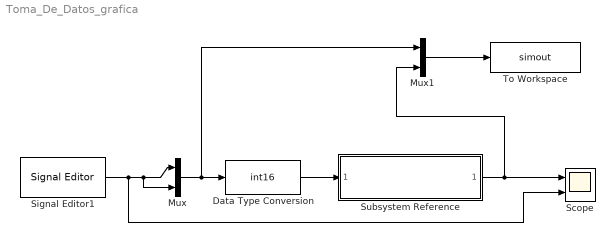
/*
 * Academic License - for use in teaching, academic research, and meeting
 * course requirements at degree granting institutions only.  Not for
 * government, commercial, or other organizational use.
 *
 * File: Toma_De_Datos_grafica.c
 *
 * Code generated for Simulink model 'Toma_De_Datos_grafica'.
 *
 * Model version                  : 1.8
 * Simulink Coder version         : 23.2 (R2023b) 01-Aug-2023
 * C/C++ source code generated on : Thu Nov 30 12:35:22 2023
 *
 * Target selection: ert.tlc
 * Embedded hardware selection: Atmel->AVR
 * Code generation objectives: Unspecified
 * Validation result: Not run
 */

#include "Toma_De_Datos_grafica.h"
#include <math.h>
#include "rt_nonfinite.h"
#include "rtwtypes.h"
#include "Toma_De_Datos_grafica_private.h"

/* Block signals (default storage) */
B_Toma_De_Datos_grafica_T Toma_De_Datos_grafica_B;

/* Block states (default storage) */
DW_Toma_De_Datos_grafica_T Toma_De_Datos_grafica_DW;

/* Real-time model */
static RT_MODEL_Toma_De_Datos_grafic_T Toma_De_Datos_grafica_M_;
RT_MODEL_Toma_De_Datos_grafic_T *const Toma_De_Datos_grafica_M =
  &Toma_De_Datos_grafica_M_;

/* Model step function */
void Toma_De_Datos_grafica_step(void)
{
  {
    real_T (*lastU)[2];
    real_T Gain_tmp;
    real_T lastTime_tmp;
    int32_T rtb_Gain;
    int32_T rtb_Saturation4;
    int16_T rtb_DataTypeConversion_idx_1;
    int16_T y;

    /* MATLABSystem: '<S3>/Encoder' */
    if (Toma_De_Datos_grafica_DW.obj_n.SampleTime !=
        Toma_De_Datos_grafica_P.Encoder_SampleTime) {
      Toma_De_Datos_grafica_DW.obj_n.SampleTime =
        Toma_De_Datos_grafica_P.Encoder_SampleTime;
    }

    if (Toma_De_Datos_grafica_DW.obj_n.TunablePropsChanged) {
      Toma_De_Datos_grafica_DW.obj_n.TunablePropsChanged = false;
    }

    /* MATLABSystem: '<S3>/Encoder' */
    MW_EncoderRead(Toma_De_Datos_grafica_DW.obj_n.Index,
                   &Toma_De_Datos_grafica_B.Encoder);

    /* MATLABSystem: '<S3>/Encoder1' */
    if (Toma_De_Datos_grafica_DW.obj.SampleTime !=
        Toma_De_Datos_grafica_P.Encoder1_SampleTime) {
      Toma_De_Datos_grafica_DW.obj.SampleTime =
        Toma_De_Datos_grafica_P.Encoder1_SampleTime;
    }

    if (Toma_De_Datos_grafica_DW.obj.TunablePropsChanged) {
      Toma_De_Datos_grafica_DW.obj.TunablePropsChanged = false;
    }

    /* MATLABSystem: '<S3>/Encoder1' */
    MW_EncoderRead(Toma_De_Datos_grafica_DW.obj.Index,
                   &Toma_De_Datos_grafica_B.Encoder1);

    /* Gain: '<S3>/Gain' */
    Gain_tmp = (real_T)Toma_De_Datos_grafica_P.Gain_Gain *
      1.1368683772161603E-13;

    /* Gain: '<S3>/Gain' incorporates:
     *  SignalConversion generated from: '<S3>/Gain'
     */
    Toma_De_Datos_grafica_B.Gain[0] = Gain_tmp * (real_T)
      Toma_De_Datos_grafica_B.Encoder;
    Toma_De_Datos_grafica_B.Gain[1] = Gain_tmp * (real_T)
      Toma_De_Datos_grafica_B.Encoder1;

    /* Derivative: '<S3>/Derivative' */
    Gain_tmp = Toma_De_Datos_grafica_M->Timing.t[0];
    if ((Toma_De_Datos_grafica_DW.TimeStampA >= Gain_tmp) &&
        (Toma_De_Datos_grafica_DW.TimeStampB >= Gain_tmp)) {
      /* Derivative: '<S3>/Derivative' */
      Toma_De_Datos_grafica_B.Derivative[0] = 0.0;
      Toma_De_Datos_grafica_B.Derivative[1] = 0.0;
    } else {
      lastTime_tmp = Toma_De_Datos_grafica_DW.TimeStampA;
      lastU = &Toma_De_Datos_grafica_DW.LastUAtTimeA;
      if (Toma_De_Datos_grafica_DW.TimeStampA <
          Toma_De_Datos_grafica_DW.TimeStampB) {
        if (Toma_De_Datos_grafica_DW.TimeStampB < Gain_tmp) {
          lastTime_tmp = Toma_De_Datos_grafica_DW.TimeStampB;
          lastU = &Toma_De_Datos_grafica_DW.LastUAtTimeB;
        }
      } else if (Toma_De_Datos_grafica_DW.TimeStampA >= Gain_tmp) {
        lastTime_tmp = Toma_De_Datos_grafica_DW.TimeStampB;
        lastU = &Toma_De_Datos_grafica_DW.LastUAtTimeB;
      }

      Gain_tmp -= lastTime_tmp;

      /* Derivative: '<S3>/Derivative' */
      Toma_De_Datos_grafica_B.Derivative[0] = (Toma_De_Datos_grafica_B.Gain[0] -
        (*lastU)[0]) / Gain_tmp;
      Toma_De_Datos_grafica_B.Derivative[1] = (Toma_De_Datos_grafica_B.Gain[1] -
        (*lastU)[1]) / Gain_tmp;
    }

    /* End of Derivative: '<S3>/Derivative' */

    /* FromWorkspace: '<S1>/From Workspace' */
    {
      real_T *pDataValues = (real_T *)
        Toma_De_Datos_grafica_DW.FromWorkspace_PWORK.DataPtr;
      real_T *pTimeValues = (real_T *)
        Toma_De_Datos_grafica_DW.FromWorkspace_PWORK.TimePtr;
      int_T currTimeIndex =
        Toma_De_Datos_grafica_DW.FromWorkspace_IWORK.PrevIndex;
      real_T t = Toma_De_Datos_grafica_M->Timing.t[0];
      if (t > pTimeValues[13]) {
        Toma_De_Datos_grafica_B.Signal2 = 0.0;
      } else {
        /* Get index */
        if (t <= pTimeValues[0]) {
          currTimeIndex = 0;
        } else if (t >= pTimeValues[13]) {
          currTimeIndex = 12;
        } else {
          if (t < pTimeValues[currTimeIndex]) {
            while (t < pTimeValues[currTimeIndex]) {
              currTimeIndex--;
            }
          } else {
            while (t >= pTimeValues[currTimeIndex + 1]) {
              currTimeIndex++;
            }
          }
        }

        Toma_De_Datos_grafica_DW.FromWorkspace_IWORK.PrevIndex = currTimeIndex;

        /* Post output */
        {
          real_T t1 = pTimeValues[currTimeIndex];
          real_T t2 = pTimeValues[currTimeIndex + 1];
          if (t1 == t2) {
            if (t < t1) {
              Toma_De_Datos_grafica_B.Signal2 = pDataValues[currTimeIndex];
            } else {
              Toma_De_Datos_grafica_B.Signal2 = pDataValues[currTimeIndex + 1];
            }
          } else {
            real_T f1 = (t2 - t) / (t2 - t1);
            real_T f2 = 1.0 - f1;
            real_T d1;
            real_T d2;
            int_T TimeIndex = currTimeIndex;
            d1 = pDataValues[TimeIndex];
            d2 = pDataValues[TimeIndex + 1];
            Toma_De_Datos_grafica_B.Signal2 = (real_T) rtInterpolate(d1, d2, f1,
              f2);
            pDataValues += 14;
          }
        }
      }
    }

    /* SignalConversion generated from: '<Root>/To Workspace' */
    Toma_De_Datos_grafica_B.TmpSignalConversionAt_asyncqueu[0] =
      Toma_De_Datos_grafica_B.Signal2;
    Toma_De_Datos_grafica_B.TmpSignalConversionAt_asyncqueu[1] =
      Toma_De_Datos_grafica_B.Signal2;
    Toma_De_Datos_grafica_B.TmpSignalConversionAt_asyncqueu[2] =
      Toma_De_Datos_grafica_B.Derivative[0];
    Toma_De_Datos_grafica_B.TmpSignalConversionAt_asyncqueu[3] =
      Toma_De_Datos_grafica_B.Derivative[1];

    /* DataTypeConversion: '<Root>/Data Type Conversion' */
    Gain_tmp = floor(Toma_De_Datos_grafica_B.Signal2);
    if (rtIsNaN(Gain_tmp) || rtIsInf(Gain_tmp)) {
      lastTime_tmp = 0.0;
      Gain_tmp = 0.0;
    } else {
      lastTime_tmp = fmod(Gain_tmp, 65536.0);
      Gain_tmp = lastTime_tmp;
    }

    rtb_DataTypeConversion_idx_1 = Gain_tmp < 0.0 ? -(int16_T)(uint16_T)
      -Gain_tmp : (int16_T)(uint16_T)Gain_tmp;

    /* SignalConversion generated from: '<S3>/Mux' */
    Toma_De_Datos_grafica_B.TmpSignalConversionAtTAQSigLogg[0] =
      Toma_De_Datos_grafica_B.Encoder;
    Toma_De_Datos_grafica_B.TmpSignalConversionAtTAQSigLogg[1] =
      Toma_De_Datos_grafica_B.Encoder1;

    /* MATLABSystem: '<S4>/Adelante_der' */
    Toma_De_Datos_grafica_DW.obj_d.PWMDriverObj.MW_PWM_HANDLE = MW_PWM_GetHandle
      (12UL);

    /* Saturate: '<S4>/Saturation2' */
    if (rtb_DataTypeConversion_idx_1 >
        Toma_De_Datos_grafica_P.Saturation2_UpperSat) {
      y = Toma_De_Datos_grafica_P.Saturation2_UpperSat;
    } else if (rtb_DataTypeConversion_idx_1 <
               Toma_De_Datos_grafica_P.Saturation2_LowerSat) {
      y = Toma_De_Datos_grafica_P.Saturation2_LowerSat;
    } else {
      y = rtb_DataTypeConversion_idx_1;
    }

    /* End of Saturate: '<S4>/Saturation2' */

    /* Start for MATLABSystem: '<S4>/Adelante_der' */
    if (y > 255) {
      y = 255;
    }

    if (y < 0) {
      y = 0;
    }

    /* MATLABSystem: '<S4>/Adelante_der' */
    MW_PWM_SetDutyCycle
      (Toma_De_Datos_grafica_DW.obj_d.PWMDriverObj.MW_PWM_HANDLE, (real_T)y);

    /* Gain: '<S4>/Gain' incorporates:
     *  DataTypeConversion: '<Root>/Data Type Conversion'
     */
    rtb_Gain = (int32_T)(lastTime_tmp < 0.0 ? -(int16_T)(uint16_T)-lastTime_tmp :
                         (int16_T)(uint16_T)lastTime_tmp) *
      Toma_De_Datos_grafica_P.Gain_Gain_f;

    /* MATLABSystem: '<S4>/Digital Output' incorporates:
     *  Constant: '<S5>/Constant'
     *  Gain: '<S4>/Gain'
     *  RelationalOperator: '<S5>/Compare'
     */
    writeDigitalPin(8, (uint8_T)(rtb_Gain !=
      Toma_De_Datos_grafica_P.Constant_Value));

    /* Saturate: '<S4>/Saturation4' incorporates:
     *  Gain: '<S4>/Gain'
     */
    if (rtb_Gain > Toma_De_Datos_grafica_P.Saturation4_UpperSat) {
      rtb_Saturation4 = Toma_De_Datos_grafica_P.Saturation4_UpperSat;
    } else if (rtb_Gain < Toma_De_Datos_grafica_P.Saturation4_LowerSat) {
      rtb_Saturation4 = Toma_De_Datos_grafica_P.Saturation4_LowerSat;
    } else {
      rtb_Saturation4 = rtb_Gain;
    }

    /* End of Saturate: '<S4>/Saturation4' */

    /* MATLABSystem: '<S4>/Adelante_izq' */
    Toma_De_Datos_grafica_DW.obj_pv.PWMDriverObj.MW_PWM_HANDLE =
      MW_PWM_GetHandle(9UL);

    /* Abs: '<S4>/Abs2' incorporates:
     *  Saturate: '<S4>/Saturation4'
     */
    if (rtb_Saturation4 < 0L) {
      rtb_Saturation4 = -rtb_Saturation4;
    }

    /* Start for MATLABSystem: '<S4>/Adelante_izq' incorporates:
     *  Abs: '<S4>/Abs2'
     */
    Gain_tmp = (real_T)rtb_Saturation4 * 6.103515625E-5;
    if (!(Gain_tmp <= 255.0)) {
      Gain_tmp = 255.0;
    }

    if (!(Gain_tmp >= 0.0)) {
      Gain_tmp = 0.0;
    }

    /* MATLABSystem: '<S4>/Adelante_izq' */
    MW_PWM_SetDutyCycle
      (Toma_De_Datos_grafica_DW.obj_pv.PWMDriverObj.MW_PWM_HANDLE, Gain_tmp);

    /* MATLABSystem: '<S4>/Atras_izq' */
    Toma_De_Datos_grafica_DW.obj_p.PWMDriverObj.MW_PWM_HANDLE = MW_PWM_GetHandle
      (10UL);

    /* Saturate: '<S4>/Saturation5' incorporates:
     *  Gain: '<S4>/Gain'
     */
    if (rtb_Gain > Toma_De_Datos_grafica_P.Saturation5_UpperSat) {
      rtb_Gain = Toma_De_Datos_grafica_P.Saturation5_UpperSat;
    } else if (rtb_Gain < Toma_De_Datos_grafica_P.Saturation5_LowerSat) {
      rtb_Gain = Toma_De_Datos_grafica_P.Saturation5_LowerSat;
    }

    /* Start for MATLABSystem: '<S4>/Atras_izq' incorporates:
     *  Saturate: '<S4>/Saturation5'
     */
    Gain_tmp = (real_T)rtb_Gain * 6.103515625E-5;
    if (!(Gain_tmp <= 255.0)) {
      Gain_tmp = 255.0;
    }

    if (!(Gain_tmp >= 0.0)) {
      Gain_tmp = 0.0;
    }

    /* MATLABSystem: '<S4>/Atras_izq' */
    MW_PWM_SetDutyCycle
      (Toma_De_Datos_grafica_DW.obj_p.PWMDriverObj.MW_PWM_HANDLE, Gain_tmp);

    /* MATLABSystem: '<S4>/Atras_der' */
    Toma_De_Datos_grafica_DW.obj_g.PWMDriverObj.MW_PWM_HANDLE = MW_PWM_GetHandle
      (11UL);

    /* Saturate: '<S4>/Saturation3' */
    if (rtb_DataTypeConversion_idx_1 >
        Toma_De_Datos_grafica_P.Saturation3_UpperSat) {
      y = Toma_De_Datos_grafica_P.Saturation3_UpperSat;
    } else if (rtb_DataTypeConversion_idx_1 <
               Toma_De_Datos_grafica_P.Saturation3_LowerSat) {
      y = Toma_De_Datos_grafica_P.Saturation3_LowerSat;
    } else {
      y = rtb_DataTypeConversion_idx_1;
    }

    /* End of Saturate: '<S4>/Saturation3' */

    /* Abs: '<S4>/Abs1' */
    if (y < 0) {
      y = -y;
    }

    /* End of Abs: '<S4>/Abs1' */

    /* Start for MATLABSystem: '<S4>/Atras_der' */
    if (y > 255) {
      y = 255;
    }

    if (y < 0) {
      y = 0;
    }

    /* MATLABSystem: '<S4>/Atras_der' */
    MW_PWM_SetDutyCycle
      (Toma_De_Datos_grafica_DW.obj_g.PWMDriverObj.MW_PWM_HANDLE, (real_T)y);

    /* MATLABSystem: '<S4>/Digital Output1' incorporates:
     *  Constant: '<S6>/Constant'
     *  RelationalOperator: '<S6>/Compare'
     */
    writeDigitalPin(13, (uint8_T)(rtb_DataTypeConversion_idx_1 !=
      Toma_De_Datos_grafica_P.Constant_Value_j));
  }

  {
    real_T (*lastU)[2];

    /* Update for Derivative: '<S3>/Derivative' */
    if (Toma_De_Datos_grafica_DW.TimeStampA == (rtInf)) {
      Toma_De_Datos_grafica_DW.TimeStampA = Toma_De_Datos_grafica_M->Timing.t[0];
      lastU = &Toma_De_Datos_grafica_DW.LastUAtTimeA;
    } else if (Toma_De_Datos_grafica_DW.TimeStampB == (rtInf)) {
      Toma_De_Datos_grafica_DW.TimeStampB = Toma_De_Datos_grafica_M->Timing.t[0];
      lastU = &Toma_De_Datos_grafica_DW.LastUAtTimeB;
    } else if (Toma_De_Datos_grafica_DW.TimeStampA <
               Toma_De_Datos_grafica_DW.TimeStampB) {
      Toma_De_Datos_grafica_DW.TimeStampA = Toma_De_Datos_grafica_M->Timing.t[0];
      lastU = &Toma_De_Datos_grafica_DW.LastUAtTimeA;
    } else {
      Toma_De_Datos_grafica_DW.TimeStampB = Toma_De_Datos_grafica_M->Timing.t[0];
      lastU = &Toma_De_Datos_grafica_DW.LastUAtTimeB;
    }

    (*lastU)[0] = Toma_De_Datos_grafica_B.Gain[0];
    (*lastU)[1] = Toma_De_Datos_grafica_B.Gain[1];

    /* End of Update for Derivative: '<S3>/Derivative' */
  }

  {                                    /* Sample time: [0.0s, 0.0s] */
    extmodeErrorCode_T errorCode = EXTMODE_SUCCESS;
    extmodeSimulationTime_T currentTime = (extmodeSimulationTime_T)
      ((Toma_De_Datos_grafica_M->Timing.clockTick0 * 1) + 0)
      ;

    /* Trigger External Mode event */
    errorCode = extmodeEvent(0,currentTime);
    if (errorCode != EXTMODE_SUCCESS) {
      /* Code to handle External Mode event errors
         may be added here */
    }
  }

  {                                    /* Sample time: [0.01s, 0.0s] */
    extmodeErrorCode_T errorCode = EXTMODE_SUCCESS;
    extmodeSimulationTime_T currentTime = (extmodeSimulationTime_T)
      ((Toma_De_Datos_grafica_M->Timing.clockTick1 * 1) + 0)
      ;

    /* Trigger External Mode event */
    errorCode = extmodeEvent(1,currentTime);
    if (errorCode != EXTMODE_SUCCESS) {
      /* Code to handle External Mode event errors
         may be added here */
    }
  }

  /* Update absolute time for base rate */
  /* The "clockTick0" counts the number of times the code of this task has
   * been executed. The absolute time is the multiplication of "clockTick0"
   * and "Timing.stepSize0". Size of "clockTick0" ensures timer will not
   * overflow during the application lifespan selected.
   */
  Toma_De_Datos_grafica_M->Timing.t[0] =
    ((time_T)(++Toma_De_Datos_grafica_M->Timing.clockTick0)) *
    Toma_De_Datos_grafica_M->Timing.stepSize0;

  {
    /* Update absolute timer for sample time: [0.01s, 0.0s] */
    /* The "clockTick1" counts the number of times the code of this task has
     * been executed. The resolution of this integer timer is 0.01, which is the step size
     * of the task. Size of "clockTick1" ensures timer will not overflow during the
     * application lifespan selected.
     */
    Toma_De_Datos_grafica_M->Timing.clockTick1++;
  }
}
